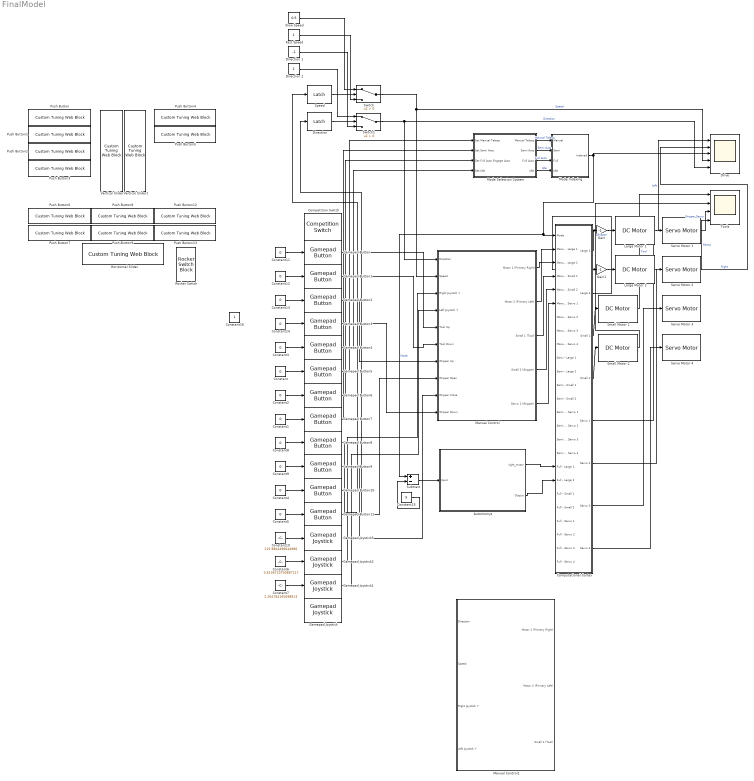
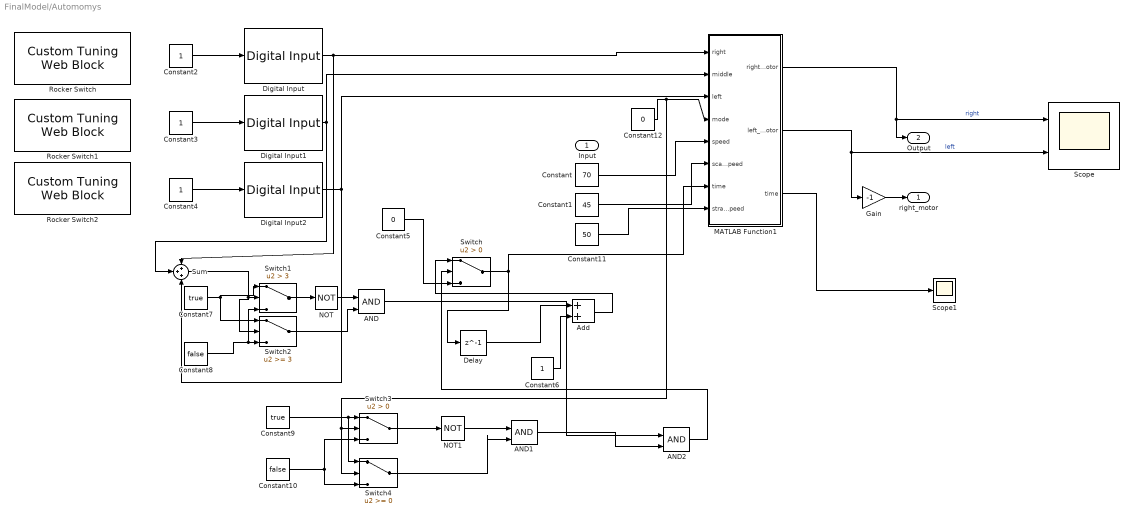
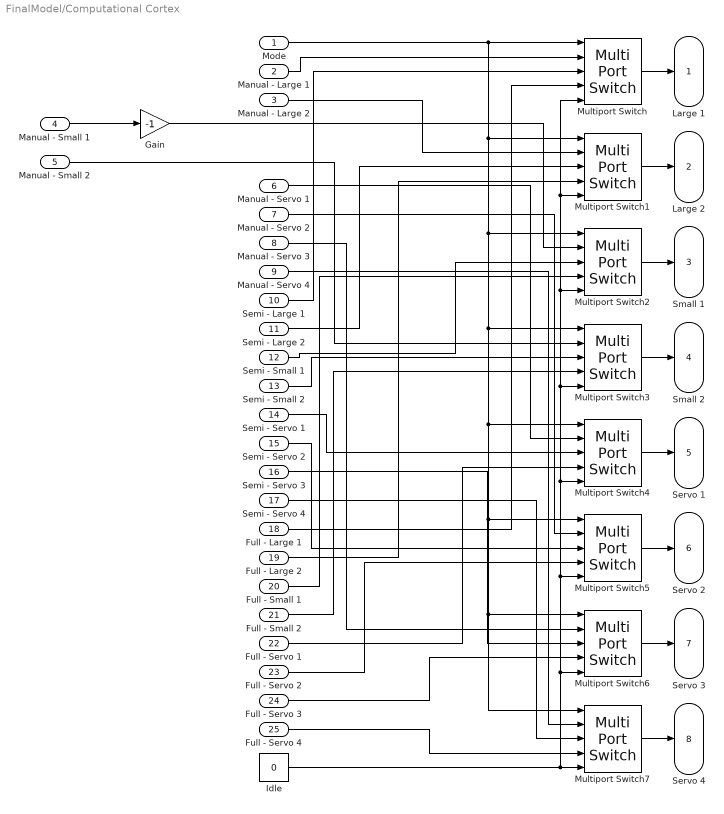
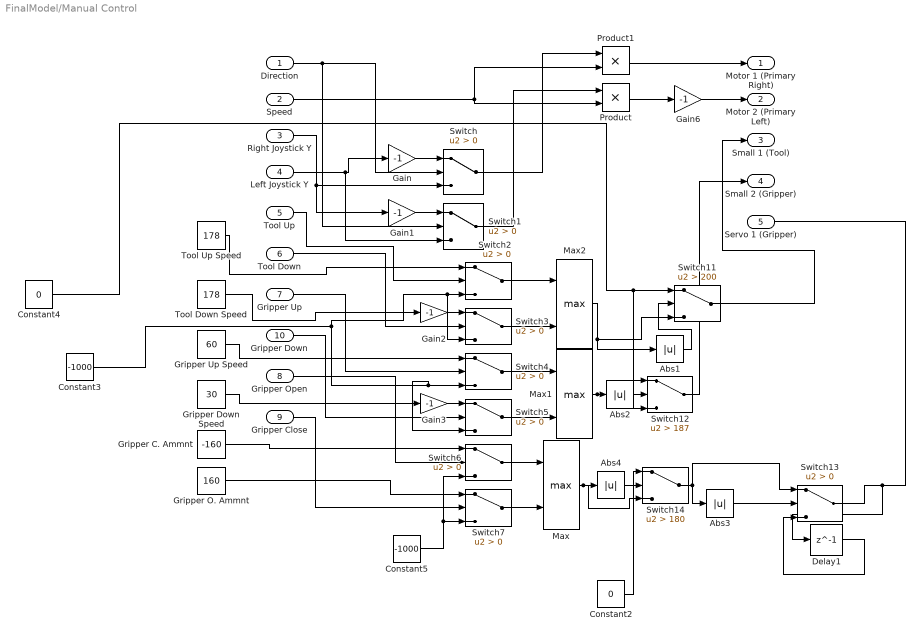
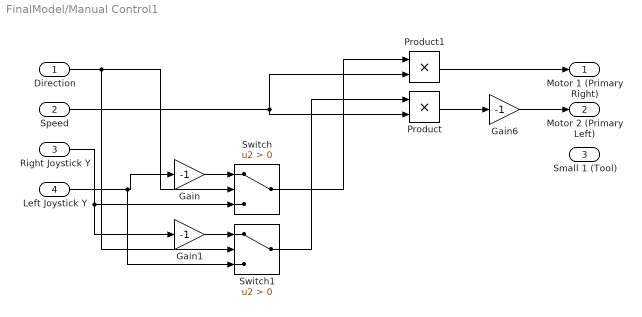
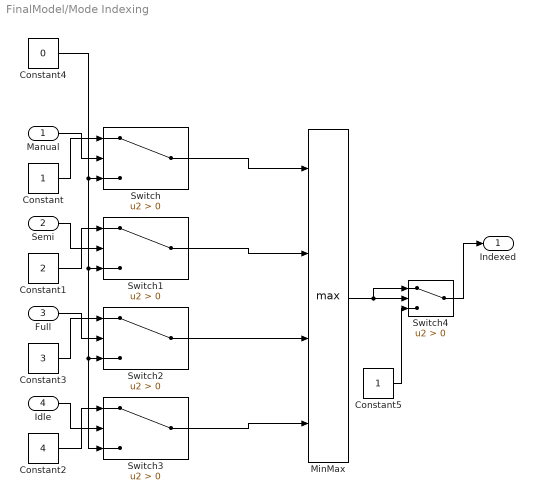
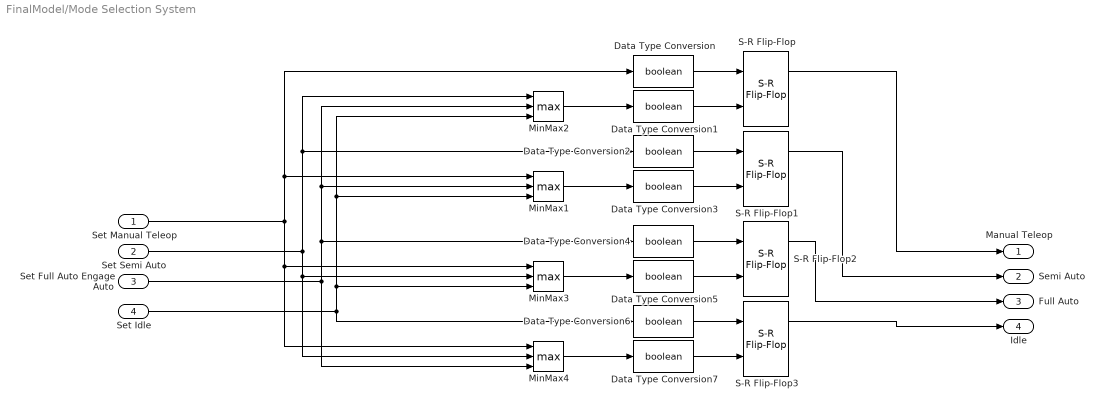
== matlab function FinalModel/Automomys/MATLAB Function1 ==
function [right_motor, left_motor, time]  = line_follow(right, middle, left, mode, speed, scanspeed, time, straightspeed)
right_motor = 0;
left_motor = 0;
if mode == 0
   if left == 1 && middle == 0 && right == 1
       %Straight
       right_motor = straightspeed;
       left_motor = straightspeed;
   elseif left == 1 && middle == 0 && right == 0
       %RightSlight
       right_motor = speed/2;
       left_motor = speed;
   elseif left == 1 && middle == 1 && right == 0
       %Right
       right_motor = -speed/2;
       left_motor = speed/2;
   elseif left == 0 && middle == 0 && right == 1
       %LeftSlight
       right_motor = speed;
       left_motor = speed/2;
   elseif left == 0 && middle == 1 && right == 1
       %Left
       right_motor = speed/2;
       left_motor = -speed/2;
   else     %scanning
       if time < 25 %change to time off
           %scan right
           right_motor = -scanspeed;
           left_motor = scanspeed;
       elseif time >= 25 && time < 75 %change to time off
           %scan left
           right_motor = scanspeed;
           left_motor = -scanspeed;
       elseif time >= 75 && time < 100  %change to time off
           right_motor = -scanspeed;
           left_motor = scanspeed;
       elseif time >= 100 && time < 105  %change to time off
           right_motor = 0;
           left_motor = 0;           
       else
           left_motor = -scanspeed;
           right_motor = -scanspeed;
       end
   end
end

/*
 * Sponsored License - for use in support of a program or activity
 * sponsored by MathWorks.  Not for government, commercial or other
 * non-sponsored organizational use.
 *
 * File: FinalModel.c
 *
 * Code generated for Simulink model 'FinalModel'.
 *
 * Model version                  : 1.65
 * Simulink Coder version         : 23.2 (R2023b) 01-Aug-2023
 * C/C++ source code generated on : Thu Dec 14 19:41:36 2023
 *
 * Target selection: ert.tlc
 * Embedded hardware selection: ARM Compatible->ARM Cortex
 * Code generation objectives: Unspecified
 * Validation result: Not run
 */

#include "FinalModel.h"
#include "rtwtypes.h"
#include "FinalModel_private.h"
#include "rt_nonfinite.h"
#include <math.h>

/* Named constants for Chart: '<S3>/Chart' */
#define FinalModel_IN_init             ((uint8_T)1U)
#define FinalModel_IN_wait             ((uint8_T)2U)

/* Block signals (default storage) */
B_FinalModel_T FinalModel_B;

/* Block states (default storage) */
DW_FinalModel_T FinalModel_DW;

/* Real-time model */
static RT_MODEL_FinalModel_T FinalModel_M_;
RT_MODEL_FinalModel_T *const FinalModel_M = &FinalModel_M_;
static void rate_scheduler(void);

/*
 *         This function updates active task flag for each subrate.
 *         The function is called at model base rate, hence the
 *         generated code self-manages all its subrates.
 */
static void rate_scheduler(void)
{
  /* Compute which subrates run during the next base time step.  Subrates
   * are an integer multiple of the base rate counter.  Therefore, the subtask
   * counter is reset when it reaches its limit (zero means run).
   */
  (FinalModel_M->Timing.TaskCounters.TID[1])++;
  if ((FinalModel_M->Timing.TaskCounters.TID[1]) > 9) {/* Sample time: [0.2s, 0.0s] */
    FinalModel_M->Timing.TaskCounters.TID[1] = 0;
  }
}

/*
 * System initialize for atomic system:
 *    '<S3>/Chart'
 *    '<S8>/Chart'
 */
void FinalModel_Chart_Init(real_T *rty_output)
{
  *rty_output = 0.0;
}

/*
 * Output and update for atomic system:
 *    '<S3>/Chart'
 *    '<S8>/Chart'
 */
void FinalModel_Chart(real_T rtu_trigger, real_T *rty_output,
                      DW_Chart_FinalModel_T *localDW, P_Chart_FinalModel_T
                      *localP)
{
  /* Chart: '<S3>/Chart' */
  if (localDW->is_active_c7_vexcommonlib == 0U) {
    localDW->is_active_c7_vexcommonlib = 1U;
    *rty_output = localP->Chart_output0;
    localDW->is_c7_vexcommonlib = FinalModel_IN_init;
  } else if (localDW->is_c7_vexcommonlib == FinalModel_IN_init) {
    if (rtu_trigger != 0.0) {
      *rty_output = !(*rty_output != 0.0);
      localDW->is_c7_vexcommonlib = FinalModel_IN_wait;
    }

    /* case IN_wait: */
  } else if (rtu_trigger == 0.0) {
    localDW->is_c7_vexcommonlib = FinalModel_IN_init;
  }

  /* End of Chart: '<S3>/Chart' */
}

real_T rt_roundd_snf(real_T u)
{
  real_T y;
  if (fabs(u) < 4.503599627370496E+15) {
    if (u >= 0.5) {
      y = floor(u + 0.5);
    } else if (u > -0.5) {
      y = u * 0.0;
    } else {
      y = ceil(u - 0.5);
    }
  } else {
    y = u;
  }

  return y;
}

/* Model step function */
void FinalModel_step(void)
{
  real_T rtb_Direction;
  real_T rtb_MultiportSwitch6;
  real_T rtb_Sum;
  real_T rtb_Switch3;
  real_T rtb_left_motor;
  real_T y;
  int32_T tmp;
  uint8_T b_varargout_1;
  uint8_T b_varargout_2;
  boolean_T tmp_0;
  boolean_T tmp_1;
  boolean_T tmp_2;
  boolean_T tmp_3;

  /* MATLABSystem: '<Root>/Gamepad Button5' */
  FinalModel_B.MinMax = joystickGetDigital(1, 7, 4);

  /* MATLABSystem: '<Root>/Gamepad Button7' */
  rtb_MultiportSwitch6 = joystickGetDigital(1, 7, 8);

  /* MATLABSystem: '<Root>/Gamepad Button6' */
  rtb_Switch3 = joystickGetDigital(1, 7, 2);

  /* MATLABSystem: '<Root>/Gamepad Button4' */
  rtb_Direction = joystickGetDigital(1, 7, 1);

  /* MinMax: '<S7>/MinMax2' incorporates:
   *  MATLABSystem: '<Root>/Gamepad Button4'
   *  MATLABSystem: '<Root>/Gamepad Button6'
   *  MATLABSystem: '<Root>/Gamepad Button7'
   *  MinMax: '<S7>/MinMax1'
   *  MinMax: '<S7>/MinMax3'
   *  MinMax: '<S7>/MinMax4'
   */
  tmp_1 = rtIsNaN(rtb_Switch3);
  if ((rtb_MultiportSwitch6 >= rtb_Switch3) || tmp_1) {
    y = rtb_MultiportSwitch6;
  } else {
    y = rtb_Switch3;
  }

  tmp_3 = !rtIsNaN(rtb_Direction);
  if ((!(y >= rtb_Direction)) && tmp_3) {
    y = rtb_Direction;
  }

  /* Switch: '<S6>/Switch' incorporates:
   *  CombinatorialLogic: '<S11>/Logic'
   *  DataTypeConversion: '<S7>/Data Type Conversion'
   *  DataTypeConversion: '<S7>/Data Type Conversion1'
   *  MATLABSystem: '<Root>/Gamepad Button5'
   *  Memory: '<S11>/Memory'
   *  MinMax: '<S7>/MinMax2'
   */
  FinalModel_DW.Memory_PreviousInput = FinalModel_P.Logic_table[((((uint32_T)
    (FinalModel_B.MinMax != 0.0) << 1) + (uint32_T)(y != 0.0)) << 1) +
    FinalModel_DW.Memory_PreviousInput];

  /* MinMax: '<S7>/MinMax1' incorporates:
   *  MATLABSystem: '<Root>/Gamepad Button4'
   *  MATLABSystem: '<Root>/Gamepad Button5'
   *  MATLABSystem: '<Root>/Gamepad Button6'
   */
  if ((FinalModel_B.MinMax >= rtb_Switch3) || tmp_1) {
    y = FinalModel_B.MinMax;
  } else {
    y = rtb_Switch3;
  }

  if ((!(y >= rtb_Direction)) && tmp_3) {
    y = rtb_Direction;
  }

  /* Switch: '<S6>/Switch1' incorporates:
   *  CombinatorialLogic: '<S12>/Logic'
   *  DataTypeConversion: '<S7>/Data Type Conversion2'
   *  DataTypeConversion: '<S7>/Data Type Conversion3'
   *  MATLABSystem: '<Root>/Gamepad Button7'
   *  Memory: '<S12>/Memory'
   *  MinMax: '<S7>/MinMax1'
   */
  FinalModel_DW.Memory_PreviousInput_a = FinalModel_P.Logic_table_a[((((uint32_T)
    (rtb_MultiportSwitch6 != 0.0) << 1) + (uint32_T)(y != 0.0)) << 1) +
    FinalModel_DW.Memory_PreviousInput_a];

  /* MinMax: '<S7>/MinMax3' incorporates:
   *  MATLABSystem: '<Root>/Gamepad Button4'
   *  MATLABSystem: '<Root>/Gamepad Button5'
   *  MATLABSystem: '<Root>/Gamepad Button7'
   *  MinMax: '<S7>/MinMax4'
   */
  tmp_2 = ((FinalModel_B.MinMax >= rtb_MultiportSwitch6) || rtIsNaN
           (rtb_MultiportSwitch6));
  if (tmp_2) {
    y = FinalModel_B.MinMax;
  } else {
    y = rtb_MultiportSwitch6;
  }

  if ((!(y >= rtb_Direction)) && tmp_3) {
    y = rtb_Direction;
  }

  /* Switch: '<S6>/Switch2' incorporates:
   *  CombinatorialLogic: '<S13>/Logic'
   *  DataTypeConversion: '<S7>/Data Type Conversion4'
   *  DataTypeConversion: '<S7>/Data Type Conversion5'
   *  MATLABSystem: '<Root>/Gamepad Button6'
   *  Memory: '<S13>/Memory'
   *  MinMax: '<S7>/MinMax3'
   */
  FinalModel_DW.Memory_PreviousInput_i = FinalModel_P.Logic_table_b[((((uint32_T)
    (rtb_Switch3 != 0.0) << 1) + (uint32_T)(y != 0.0)) << 1) +
    FinalModel_DW.Memory_PreviousInput_i];

  /* MinMax: '<S7>/MinMax4' incorporates:
   *  MATLABSystem: '<Root>/Gamepad Button5'
   *  MATLABSystem: '<Root>/Gamepad Button6'
   */
  if (tmp_2) {
    rtb_MultiportSwitch6 = FinalModel_B.MinMax;
  }

  if ((rtb_MultiportSwitch6 >= rtb_Switch3) || tmp_1) {
    rtb_Switch3 = rtb_MultiportSwitch6;
  }

  /* Switch: '<S6>/Switch3' incorporates:
   *  CombinatorialLogic: '<S14>/Logic'
   *  DataTypeConversion: '<S7>/Data Type Conversion6'
   *  DataTypeConversion: '<S7>/Data Type Conversion7'
   *  MATLABSystem: '<Root>/Gamepad Button4'
   *  Memory: '<S14>/Memory'
   *  MinMax: '<S7>/MinMax4'
   */
  FinalModel_DW.Memory_PreviousInput_n = FinalModel_P.Logic_table_j[((((uint32_T)
    (rtb_Direction != 0.0) << 1) + (uint32_T)(rtb_Switch3 != 0.0)) << 1) +
    FinalModel_DW.Memory_PreviousInput_n];

  /* Switch: '<S6>/Switch' incorporates:
   *  Constant: '<S6>/Constant'
   *  Constant: '<S6>/Constant4'
   */
  if (FinalModel_DW.Memory_PreviousInput) {
    rtb_MultiportSwitch6 = FinalModel_P.Constant_Value;
  } else {
    rtb_MultiportSwitch6 = FinalModel_P.Constant4_Value;
  }

  /* Switch: '<S6>/Switch1' incorporates:
   *  Constant: '<S6>/Constant1'
   *  Constant: '<S6>/Constant4'
   */
  if (FinalModel_DW.Memory_PreviousInput_a) {
    rtb_Switch3 = FinalModel_P.Constant1_Value;
  } else {
    rtb_Switch3 = FinalModel_P.Constant4_Value;
  }

  /* Switch: '<S6>/Switch2' incorporates:
   *  Constant: '<S6>/Constant3'
   *  Constant: '<S6>/Constant4'
   */
  if (FinalModel_DW.Memory_PreviousInput_i) {
    rtb_Direction = FinalModel_P.Constant3_Value;
  } else {
    rtb_Direction = FinalModel_P.Constant4_Value;
  }

  /* Switch: '<S6>/Switch3' incorporates:
   *  Constant: '<S6>/Constant2'
   *  Constant: '<S6>/Constant4'
   */
  if (FinalModel_DW.Memory_PreviousInput_n) {
    FinalModel_B.MinMax = FinalModel_P.Constant2_Value_e;
  } else {
    FinalModel_B.MinMax = FinalModel_P.Constant4_Value;
  }

  /* MinMax: '<S6>/MinMax' incorporates:
   *  Switch: '<S6>/Switch'
   *  Switch: '<S6>/Switch1'
   *  Switch: '<S6>/Switch2'
   *  Switch: '<S6>/Switch3'
   */
  if ((rtb_MultiportSwitch6 >= rtb_Switch3) || rtIsNaN(rtb_Switch3)) {
    rtb_Switch3 = rtb_MultiportSwitch6;
  }

  if ((rtb_Switch3 >= rtb_Direction) || rtIsNaN(rtb_Direction)) {
    rtb_Direction = rtb_Switch3;
  }

  if ((rtb_Direction >= FinalModel_B.MinMax) || rtIsNaN(FinalModel_B.MinMax)) {
    FinalModel_B.MinMax = rtb_Direction;
  }

  /* End of MinMax: '<S6>/MinMax' */

  /* Switch: '<S6>/Switch4' incorporates:
   *  Constant: '<S6>/Constant5'
   */
  if (!(FinalModel_B.MinMax > FinalModel_P.Switch4_Threshold_j)) {
    FinalModel_B.MinMax = FinalModel_P.Constant5_Value_n;
  }

  /* End of Switch: '<S6>/Switch4' */

  /* MultiPortSwitch: '<S2>/Multiport Switch6' incorporates:
   *  Constant: '<S2>/Idle'
   */
  switch ((int32_T)FinalModel_B.MinMax) {
   case 1:
    rtb_MultiportSwitch6 = 0.0;
    break;

   case 2:
    rtb_MultiportSwitch6 = 0.0;
    break;

   case 3:
    rtb_MultiportSwitch6 = 0.0;
    break;

   default:
    rtb_MultiportSwitch6 = FinalModel_P.Idle_Value;
    break;
  }

  /* End of MultiPortSwitch: '<S2>/Multiport Switch6' */

  /* MATLABSystem: '<Root>/Servo Motor 3' */
  if (rtb_MultiportSwitch6 > 127.0) {
    rtb_MultiportSwitch6 = 127.0;
  } else if (rtb_MultiportSwitch6 < -128.0) {
    rtb_MultiportSwitch6 = -128.0;
  }

  FinalModel_B.MultiportSwitch = rt_roundd_snf(rtb_MultiportSwitch6);
  if (FinalModel_B.MultiportSwitch < 2.147483648E+9) {
    tmp = (int32_T)FinalModel_B.MultiportSwitch;
  } else {
    tmp = MAX_int32_T;
  }

  motorSet(8, tmp);

  /* End of MATLABSystem: '<Root>/Servo Motor 3' */

  /* MultiPortSwitch: '<S2>/Multiport Switch7' incorporates:
   *  Constant: '<S2>/Idle'
   */
  switch ((int32_T)FinalModel_B.MinMax) {
   case 1:
    rtb_MultiportSwitch6 = 0.0;
    break;

   case 2:
    rtb_MultiportSwitch6 = 0.0;
    break;

   case 3:
    rtb_MultiportSwitch6 = 0.0;
    break;

   default:
    rtb_MultiportSwitch6 = FinalModel_P.Idle_Value;
    break;
  }

  /* End of MultiPortSwitch: '<S2>/Multiport Switch7' */

  /* MATLABSystem: '<Root>/Servo Motor 4' */
  if (rtb_MultiportSwitch6 > 127.0) {
    rtb_MultiportSwitch6 = 127.0;
  } else if (rtb_MultiportSwitch6 < -128.0) {
    rtb_MultiportSwitch6 = -128.0;
  }

  FinalModel_B.MultiportSwitch = rt_roundd_snf(rtb_MultiportSwitch6);
  if (FinalModel_B.MultiportSwitch < 2.147483648E+9) {
    tmp = (int32_T)FinalModel_B.MultiportSwitch;
  } else {
    tmp = MAX_int32_T;
  }

  motorSet(9, tmp);

  /* End of MATLABSystem: '<Root>/Servo Motor 4' */

  /* MATLABSystem: '<Root>/Gamepad Button' */
  rtb_MultiportSwitch6 = joystickGetDigital(1, 5, 4);

  /* MATLABSystem: '<Root>/Gamepad Button1' */
  rtb_Switch3 = joystickGetDigital(1, 5, 1);

  /* MultiPortSwitch: '<S2>/Multiport Switch2' incorporates:
   *  Constant: '<S2>/Idle'
   *  Gain: '<S2>/Gain'
   *  Switch: '<S4>/Switch11'
   */
  switch ((int32_T)FinalModel_B.MinMax) {
   case 1:
    /* Switch: '<S4>/Switch3' incorporates:
     *  Constant: '<S4>/Constant3'
     *  Constant: '<S4>/Tool Down Speed'
     *  Gain: '<S4>/Gain2'
     *  MATLABSystem: '<Root>/Gamepad Button1'
     */
    if (rtb_Switch3 > FinalModel_P.Switch3_Threshold) {
      rtb_Switch3 = FinalModel_P.Gain2_Gain * FinalModel_P.ToolDownSpeed_Value;
    } else {
      rtb_Switch3 = FinalModel_P.Constant3_Value_b;
    }

    /* End of Switch: '<S4>/Switch3' */

    /* Switch: '<S4>/Switch2' incorporates:
     *  Constant: '<S4>/Constant3'
     *  Constant: '<S4>/Tool Up Speed'
     *  MATLABSystem: '<Root>/Gamepad Button'
     */
    if (rtb_MultiportSwitch6 > FinalModel_P.Switch2_Threshold) {
      rtb_MultiportSwitch6 = FinalModel_P.ToolUpSpeed_Value;
    } else {
      rtb_MultiportSwitch6 = FinalModel_P.Constant3_Value_b;
    }

    /* MinMax: '<S4>/Max2' incorporates:
     *  Switch: '<S4>/Switch2'
     */
    if ((rtb_MultiportSwitch6 >= rtb_Switch3) || rtIsNaN(rtb_Switch3)) {
      rtb_Switch3 = rtb_MultiportSwitch6;
    }

    /* End of MinMax: '<S4>/Max2' */

    /* Switch: '<S4>/Switch11' incorporates:
     *  Abs: '<S4>/Abs1'
     *  Constant: '<S4>/Constant4'
     */
    if (fabs(rtb_Switch3) > FinalModel_P.Switch11_Threshold) {
      rtb_Switch3 = FinalModel_P.Constant4_Value_i;
    }

    rtb_MultiportSwitch6 = FinalModel_P.Gain_Gain_a * rtb_Switch3;
    break;

   case 2:
    rtb_MultiportSwitch6 = 0.0;
    break;

   case 3:
    rtb_MultiportSwitch6 = 0.0;
    break;

   default:
    rtb_MultiportSwitch6 = FinalModel_P.Idle_Value;
    break;
  }

  /* End of MultiPortSwitch: '<S2>/Multiport Switch2' */

  /* MATLABSystem: '<Root>/Small Motor 1' */
  if (FinalModel_DW.obj_h.scaleFactor != FinalModel_P.SmallMotor1_scaleFactor) {
    if (FinalModel_DW.obj_h.isInitialized == 1) {
      FinalModel_DW.obj_h.TunablePropsChanged = true;
    }

    FinalModel_DW.obj_h.scaleFactor = FinalModel_P.SmallMotor1_scaleFactor;
  }

  if (FinalModel_DW.obj_h.TunablePropsChanged) {
    FinalModel_DW.obj_h.TunablePropsChanged = false;
  }

  if (rtb_MultiportSwitch6 > 127.0) {
    rtb_MultiportSwitch6 = 127.0;
  } else if (rtb_MultiportSwitch6 < -128.0) {
    rtb_MultiportSwitch6 = -128.0;
  }

  FinalModel_B.MultiportSwitch = rt_roundd_snf(rtb_MultiportSwitch6);
  if (FinalModel_B.MultiportSwitch < 2.147483648E+9) {
    tmp = (int32_T)FinalModel_B.MultiportSwitch;
  } else {
    tmp = MAX_int32_T;
  }

  motorSet(4, tmp);

  /* End of MATLABSystem: '<Root>/Small Motor 1' */

  /* MATLABSystem: '<Root>/Gamepad Button2' */
  rtb_MultiportSwitch6 = joystickGetDigital(1, 6, 4);

  /* MATLABSystem: '<Root>/Gamepad Button3' */
  rtb_Switch3 = joystickGetDigital(1, 6, 1);

  /* MultiPortSwitch: '<S2>/Multiport Switch3' incorporates:
   *  Constant: '<S2>/Idle'
   */
  switch ((int32_T)FinalModel_B.MinMax) {
   case 1:
    /* Switch: '<S4>/Switch5' incorporates:
     *  Constant: '<S4>/Constant3'
     *  Constant: '<S4>/Gripper Down Speed'
     *  Gain: '<S4>/Gain3'
     *  MATLABSystem: '<Root>/Gamepad Button3'
     */
    if (rtb_Switch3 > FinalModel_P.Switch5_Threshold) {
      rtb_Switch3 = FinalModel_P.Gain3_Gain *
        FinalModel_P.GripperDownSpeed_Value;
    } else {
      rtb_Switch3 = FinalModel_P.Constant3_Value_b;
    }

    /* End of Switch: '<S4>/Switch5' */

    /* Switch: '<S4>/Switch4' incorporates:
     *  Constant: '<S4>/Constant3'
     *  Constant: '<S4>/Gripper Up Speed'
     *  MATLABSystem: '<Root>/Gamepad Button2'
     */
    if (rtb_MultiportSwitch6 > FinalModel_P.Switch4_Threshold) {
      rtb_MultiportSwitch6 = FinalModel_P.GripperUpSpeed_Value;
    } else {
      rtb_MultiportSwitch6 = FinalModel_P.Constant3_Value_b;
    }

    /* MinMax: '<S4>/Max1' incorporates:
     *  Switch: '<S4>/Switch4'
     */
    if ((rtb_MultiportSwitch6 >= rtb_Switch3) || rtIsNaN(rtb_Switch3)) {
      rtb_Switch3 = rtb_MultiportSwitch6;
    }

    /* End of MinMax: '<S4>/Max1' */

    /* Switch: '<S4>/Switch12' incorporates:
     *  Abs: '<S4>/Abs2'
     *  Constant: '<S4>/Constant4'
     */
    if (fabs(rtb_Switch3) > FinalModel_P.Switch12_Threshold) {
      rtb_Switch3 = FinalModel_P.Constant4_Value_i;
    }

    /* End of Switch: '<S4>/Switch12' */
    break;

   case 2:
    rtb_Switch3 = 0.0;
    break;

   case 3:
    rtb_Switch3 = 0.0;
    break;

   default:
    rtb_Switch3 = FinalModel_P.Idle_Value;
    break;
  }

  /* End of MultiPortSwitch: '<S2>/Multiport Switch3' */

  /* MATLABSystem: '<Root>/Small Motor 2' */
  if (FinalModel_DW.obj.scaleFactor != FinalModel_P.SmallMotor2_scaleFactor) {
    if (FinalModel_DW.obj.isInitialized == 1) {
      FinalModel_DW.obj.TunablePropsChanged = true;
    }

    FinalModel_DW.obj.scaleFactor = FinalModel_P.SmallMotor2_scaleFactor;
  }

  if (FinalModel_DW.obj.TunablePropsChanged) {
    FinalModel_DW.obj.TunablePropsChanged = false;
  }

  if (rtb_Switch3 > 127.0) {
    rtb_Switch3 = 127.0;
  } else if (rtb_Switch3 < -128.0) {
    rtb_Switch3 = -128.0;
  }

  FinalModel_B.MultiportSwitch = rt_roundd_snf(rtb_Switch3);
  if (FinalModel_B.MultiportSwitch < 2.147483648E+9) {
    tmp = (int32_T)FinalModel_B.MultiportSwitch;
  } else {
    tmp = MAX_int32_T;
  }

  motorSet(5, tmp);

  /* End of MATLABSystem: '<Root>/Small Motor 2' */

  /* MATLABSystem: '<Root>/Gamepad Button8' */
  rtb_MultiportSwitch6 = joystickGetDigital(1, 8, 1);

  /* MATLABSystem: '<Root>/Gamepad Button9' */
  rtb_Switch3 = joystickGetDigital(1, 8, 4);

  /* Switch: '<S4>/Switch6' incorporates:
   *  Constant: '<S4>/Constant5'
   *  Constant: '<S4>/Gripper C. Ammnt'
   *  MATLABSystem: '<Root>/Gamepad Button8'
   */
  if (rtb_MultiportSwitch6 > FinalModel_P.Switch6_Threshold) {
    rtb_MultiportSwitch6 = FinalModel_P.GripperCAmmnt_Value;
  } else {
    rtb_MultiportSwitch6 = FinalModel_P.Constant5_Value_p;
  }

  /* Switch: '<S4>/Switch7' incorporates:
   *  Constant: '<S4>/Constant5'
   *  Constant: '<S4>/Gripper O. Ammnt'
   *  MATLABSystem: '<Root>/Gamepad Button9'
   */
  if (rtb_Switch3 > FinalModel_P.Switch7_Threshold) {
    FinalModel_B.MultiportSwitch = FinalModel_P.GripperOAmmnt_Value;
  } else {
    FinalModel_B.MultiportSwitch = FinalModel_P.Constant5_Value_p;
  }

  /* MinMax: '<S4>/Max' incorporates:
   *  Switch: '<S4>/Switch6'
   *  Switch: '<S4>/Switch7'
   */
  if ((rtb_MultiportSwitch6 >= FinalModel_B.MultiportSwitch) || rtIsNaN
      (FinalModel_B.MultiportSwitch)) {
    FinalModel_B.MultiportSwitch = rtb_MultiportSwitch6;
  }

  /* End of MinMax: '<S4>/Max' */

  /* Switch: '<S4>/Switch14' incorporates:
   *  Abs: '<S4>/Abs4'
   *  Constant: '<S4>/Constant2'
   */
  if (fabs(FinalModel_B.MultiportSwitch) > FinalModel_P.Switch14_Threshold) {
    FinalModel_B.MultiportSwitch = FinalModel_P.Constant2_Value;
  }

  /* End of Switch: '<S4>/Switch14' */

  /* Switch: '<S4>/Switch13' incorporates:
   *  Abs: '<S4>/Abs3'
   *  Delay: '<S4>/Delay1'
   */
  if (fabs(FinalModel_B.MultiportSwitch) > FinalModel_P.Switch13_Threshold) {
    FinalModel_DW.Delay1_DSTATE = FinalModel_B.MultiportSwitch;
  }

  /* End of Switch: '<S4>/Switch13' */

  /* MultiPortSwitch: '<S2>/Multiport Switch4' incorporates:
   *  Constant: '<S2>/Idle'
   *  Delay: '<S4>/Delay1'
   */
  switch ((int32_T)FinalModel_B.MinMax) {
   case 1:
    rtb_MultiportSwitch6 = FinalModel_DW.Delay1_DSTATE;
    break;

   case 2:
    rtb_MultiportSwitch6 = 0.0;
    break;

   case 3:
    rtb_MultiportSwitch6 = 0.0;
    break;

   default:
    rtb_MultiportSwitch6 = FinalModel_P.Idle_Value;
    break;
  }

  /* End of MultiPortSwitch: '<S2>/Multiport Switch4' */

  /* MATLABSystem: '<Root>/Servo Motor 1' */
  if (rtb_MultiportSwitch6 > 127.0) {
    rtb_MultiportSwitch6 = 127.0;
  } else if (rtb_MultiportSwitch6 < -128.0) {
    rtb_MultiportSwitch6 = -128.0;
  }

  FinalModel_B.MultiportSwitch = rt_roundd_snf(rtb_MultiportSwitch6);
  if (FinalModel_B.MultiportSwitch < 2.147483648E+9) {
    tmp = (int32_T)FinalModel_B.MultiportSwitch;
  } else {
    tmp = MAX_int32_T;
  }

  motorSet(6, tmp);

  /* End of MATLABSystem: '<Root>/Servo Motor 1' */

  /* MultiPortSwitch: '<S2>/Multiport Switch5' incorporates:
   *  Constant: '<S2>/Idle'
   */
  switch ((int32_T)FinalModel_B.MinMax) {
   case 1:
    rtb_MultiportSwitch6 = 0.0;
    break;

   case 2:
    rtb_MultiportSwitch6 = 0.0;
    break;

   case 3:
    rtb_MultiportSwitch6 = 0.0;
    break;

   default:
    rtb_MultiportSwitch6 = FinalModel_P.Idle_Value;
    break;
  }

  /* End of MultiPortSwitch: '<S2>/Multiport Switch5' */

  /* MATLABSystem: '<Root>/Servo Motor 2' */
  if (rtb_MultiportSwitch6 > 127.0) {
    rtb_MultiportSwitch6 = 127.0;
  } else if (rtb_MultiportSwitch6 < -128.0) {
    rtb_MultiportSwitch6 = -128.0;
  }

  FinalModel_B.MultiportSwitch = rt_roundd_snf(rtb_MultiportSwitch6);
  if (FinalModel_B.MultiportSwitch < 2.147483648E+9) {
    tmp = (int32_T)FinalModel_B.MultiportSwitch;
  } else {
    tmp = MAX_int32_T;
  }

  motorSet(7, tmp);

  /* End of MATLABSystem: '<Root>/Servo Motor 2' */
  if (FinalModel_M->Timing.TaskCounters.TID[1] == 0) {
    /* MATLABSystem: '<S1>/Digital Input' */
    rtb_MultiportSwitch6 = digitalRead(1);

    /* MATLABSystem: '<S1>/Digital Input1' */
    rtb_Switch3 = digitalRead(2);

    /* MATLABSystem: '<S1>/Digital Input2' */
    rtb_Direction = digitalRead(3);

    /* Sum: '<S1>/Sum' incorporates:
     *  MATLABSystem: '<S1>/Digital Input'
     *  MATLABSystem: '<S1>/Digital Input1'
     *  MATLABSystem: '<S1>/Digital Input2'
     */
    rtb_Sum = (rtb_MultiportSwitch6 + rtb_Switch3) + rtb_Direction;

    /* Switch: '<S1>/Switch1' incorporates:
     *  Constant: '<S1>/Constant7'
     *  Constant: '<S1>/Constant8'
     */
    if (rtb_Sum > FinalModel_P.Switch1_Threshold_n) {
      tmp_1 = FinalModel_P.Constant7_Value_j;
    } else {
      tmp_1 = FinalModel_P.Constant8_Value_l;
    }

    /* Switch: '<S1>/Switch2' incorporates:
     *  Constant: '<S1>/Constant7'
     *  Constant: '<S1>/Constant8'
     */
    if (rtb_Sum >= FinalModel_P.Switch2_Threshold_k) {
      tmp_3 = FinalModel_P.Constant7_Value_j;
    } else {
      tmp_3 = FinalModel_P.Constant8_Value_l;
    }

    /* Switch: '<S1>/Switch3' incorporates:
     *  Constant: '<S1>/Constant10'
     *  Constant: '<S1>/Constant12'
     *  Constant: '<S1>/Constant9'
     */
    if (FinalModel_P.Constant12_Value_g > FinalModel_P.Switch3_Threshold_o) {
      tmp_2 = FinalModel_P.Constant9_Value_p;
    } else {
      tmp_2 = FinalModel_P.Constant10_Value_c;
    }

    /* Switch: '<S1>/Switch4' incorporates:
     *  Constant: '<S1>/Constant10'
     *  Constant: '<S1>/Constant12'
     *  Constant: '<S1>/Constant9'
     */
    if (FinalModel_P.Constant12_Value_g >= FinalModel_P.Switch4_Threshold_l) {
      tmp_0 = FinalModel_P.Constant9_Value_p;
    } else {
      tmp_0 = FinalModel_P.Constant10_Value_c;
    }

    /* Switch: '<S1>/Switch' incorporates:
     *  Constant: '<S1>/Constant5'
     *  Constant: '<S1>/Constant6'
     *  Delay: '<S1>/Delay'
     *  Logic: '<S1>/AND'
     *  Logic: '<S1>/AND1'
     *  Logic: '<S1>/AND2'
     *  Logic: '<S1>/NOT'
     *  Logic: '<S1>/NOT1'
     *  Sum: '<S1>/Add'
     *  Switch: '<S1>/Switch1'
     *  Switch: '<S1>/Switch2'
     *  Switch: '<S1>/Switch3'
     *  Switch: '<S1>/Switch4'
     */
    if ((!tmp_1) && tmp_3 && ((!tmp_2) && tmp_0)) {
      rtb_Sum = FinalModel_DW.Delay_DSTATE + FinalModel_P.Constant6_Value;
    } else {
      rtb_Sum = FinalModel_P.Constant5_Value;
    }

    /* End of Switch: '<S1>/Switch' */

    /* MATLAB Function: '<S1>/MATLAB Function1' incorporates:
     *  Constant: '<S1>/Constant'
     *  Constant: '<S1>/Constant1'
     *  Constant: '<S1>/Constant11'
     *  Constant: '<S1>/Constant12'
     *  MATLABSystem: '<S1>/Digital Input'
     *  MATLABSystem: '<S1>/Digital Input1'
     *  MATLABSystem: '<S1>/Digital Input2'
     */
    FinalModel_B.right_motor = 0.0;
    rtb_left_motor = 0.0;
    if (FinalModel_P.Constant12_Value_g == 0.0) {
      tmp_1 = ((rtb_Direction == 1.0) && (rtb_Switch3 == 0.0));
      if (tmp_1 && (rtb_MultiportSwitch6 == 1.0)) {
        FinalModel_B.right_motor = FinalModel_P.Constant11_Value_k;
        rtb_left_motor = FinalModel_P.Constant11_Value_k;
      } else if (tmp_1 && (rtb_MultiportSwitch6 == 0.0)) {
        FinalModel_B.right_motor = FinalModel_P.Constant_Value_f / 2.0;
        rtb_left_motor = FinalModel_P.Constant_Value_f;
      } else if ((rtb_Direction == 1.0) && (rtb_Switch3 == 1.0) &&
                 (rtb_MultiportSwitch6 == 0.0)) {
        FinalModel_B.right_motor = -FinalModel_P.Constant_Value_f / 2.0;
        rtb_left_motor = FinalModel_P.Constant_Value_f / 2.0;
      } else if ((rtb_Direction == 0.0) && (rtb_Switch3 == 0.0) &&
                 (rtb_MultiportSwitch6 == 1.0)) {
        FinalModel_B.right_motor = FinalModel_P.Constant_Value_f;
        rtb_left_motor = FinalModel_P.Constant_Value_f / 2.0;
      } else if ((rtb_Direction == 0.0) && (rtb_Switch3 == 1.0) &&
                 (rtb_MultiportSwitch6 == 1.0)) {
        FinalModel_B.right_motor = FinalModel_P.Constant_Value_f / 2.0;
        rtb_left_motor = -FinalModel_P.Constant_Value_f / 2.0;
      } else if (rtb_Sum < 25.0) {
        FinalModel_B.right_motor = -FinalModel_P.Constant1_Value_j;
        rtb_left_motor = FinalModel_P.Constant1_Value_j;
      } else if ((rtb_Sum >= 25.0) && (rtb_Sum < 75.0)) {
        FinalModel_B.right_motor = FinalModel_P.Constant1_Value_j;
        rtb_left_motor = -FinalModel_P.Constant1_Value_j;
      } else if ((rtb_Sum >= 75.0) && (rtb_Sum < 100.0)) {
        FinalModel_B.right_motor = -FinalModel_P.Constant1_Value_j;
        rtb_left_motor = FinalModel_P.Constant1_Value_j;
      } else if ((!(rtb_Sum >= 100.0)) || (!(rtb_Sum < 105.0))) {
        rtb_left_motor = -FinalModel_P.Constant1_Value_j;
        FinalModel_B.right_motor = -FinalModel_P.Constant1_Value_j;
      }
    }

    /* End of MATLAB Function: '<S1>/MATLAB Function1' */
  }

  /* MATLABSystem: '<Root>/Gamepad Button10' */
  FinalModel_B.MultiportSwitch = joystickGetDigital(1, 8, 2);

  /* Chart: '<S8>/Chart' incorporates:
   *  MATLABSystem: '<Root>/Gamepad Button10'
   */
  FinalModel_Chart(FinalModel_B.MultiportSwitch, &FinalModel_B.output,
                   &FinalModel_DW.sf_Chart_j, &FinalModel_P.sf_Chart_j);

  /* Switch: '<Root>/Switch' incorporates:
   *  Constant: '<Root>/Fast Speed'
   *  Constant: '<Root>/Slow Speed'
   */
  if (FinalModel_B.output > FinalModel_P.Switch_Threshold_l) {
    rtb_MultiportSwitch6 = FinalModel_P.SlowSpeed_Value;
  } else {
    rtb_MultiportSwitch6 = FinalModel_P.FastSpeed_Value;
  }

  /* End of Switch: '<Root>/Switch' */

  /* MATLABSystem: '<Root>/Gamepad Joystick2' */
  rtb_Switch3 = joystickGetAnalog(1, 2);

  /* MATLABSystem: '<Root>/Gamepad Button11' */
  FinalModel_B.MultiportSwitch = joystickGetDigital(1, 8, 8);

  /* Chart: '<S3>/Chart' incorporates:
   *  MATLABSystem: '<Root>/Gamepad Button11'
   */
  FinalModel_Chart(FinalModel_B.MultiportSwitch, &FinalModel_B.output_e,
                   &FinalModel_DW.sf_Chart, &FinalModel_P.sf_Chart);

  /* Switch: '<Root>/Switch1' incorporates:
   *  Constant: '<Root>/Direction 1'
   *  Constant: '<Root>/Direction 2'
   */
  if (FinalModel_B.output_e > FinalModel_P.Switch1_Threshold_d) {
    rtb_Direction = FinalModel_P.Direction2_Value;
  } else {
    rtb_Direction = FinalModel_P.Direction1_Value;
  }

  /* End of Switch: '<Root>/Switch1' */

  /* MATLABSystem: '<Root>/Gamepad Joystick1' */
  y = joystickGetAnalog(1, 3);

  /* MultiPortSwitch: '<S2>/Multiport Switch1' incorporates:
   *  Constant: '<S2>/Idle'
   *  Product: '<S4>/Product1'
   *  Switch: '<S4>/Switch'
   */
  switch ((int32_T)FinalModel_B.MinMax) {
   case 1:
    /* Switch: '<S4>/Switch' incorporates:
     *  Gain: '<S4>/Gain'
     *  MATLABSystem: '<Root>/Gamepad Joystick1'
     *  MATLABSystem: '<Root>/Gamepad Joystick2'
     */
    if (rtb_Direction > FinalModel_P.Switch_Threshold) {
      FinalModel_B.MultiportSwitch = FinalModel_P.Gain_Gain * y;
    } else {
      FinalModel_B.MultiportSwitch = rtb_Switch3;
    }

    FinalModel_B.MultiportSwitch *= rtb_MultiportSwitch6;
    break;

   case 2:
    FinalModel_B.MultiportSwitch = 0.0;
    break;

   case 3:
    FinalModel_B.MultiportSwitch = FinalModel_B.right_motor;
    break;

   default:
    FinalModel_B.MultiportSwitch = FinalModel_P.Idle_Value;
    break;
  }

  /* End of MultiPortSwitch: '<S2>/Multiport Switch1' */

  /* Gain: '<Root>/Gain1' */
  FinalModel_B.MultiportSwitch *= FinalModel_P.Gain1_Gain_h;

  /* MATLABSystem: '<Root>/Large Motor 2' */
  if (FinalModel_DW.obj_g.scaleFactor != FinalModel_P.LargeMotor2_scaleFactor) {
    if (FinalModel_DW.obj_g.isInitialized == 1) {
      FinalModel_DW.obj_g.TunablePropsChanged = true;
    }

    FinalModel_DW.obj_g.scaleFactor = FinalModel_P.LargeMotor2_scaleFactor;
  }

  if (FinalModel_DW.obj_g.TunablePropsChanged) {
    FinalModel_DW.obj_g.TunablePropsChanged = false;
  }

  if (FinalModel_B.MultiportSwitch > 127.0) {
    FinalModel_B.MultiportSwitch = 127.0;
  } else if (FinalModel_B.MultiportSwitch < -128.0) {
    FinalModel_B.MultiportSwitch = -128.0;
  }

  FinalModel_B.MultiportSwitch = rt_roundd_snf(FinalModel_B.MultiportSwitch);
  if (FinalModel_B.MultiportSwitch < 2.147483648E+9) {
    tmp = (int32_T)FinalModel_B.MultiportSwitch;
  } else {
    tmp = MAX_int32_T;
  }

  motorSet(3, tmp);

  /* End of MATLABSystem: '<Root>/Large Motor 2' */
  if (FinalModel_M->Timing.TaskCounters.TID[1] == 0) {
    /* Gain: '<S1>/Gain' */
    FinalModel_B.Gain = FinalModel_P.Gain_Gain_n * rtb_left_motor;
  }

  /* MultiPortSwitch: '<S2>/Multiport Switch' incorporates:
   *  Constant: '<S2>/Idle'
   *  Gain: '<S4>/Gain6'
   *  Product: '<S4>/Product'
   *  Switch: '<S4>/Switch1'
   */
  switch ((int32_T)FinalModel_B.MinMax) {
   case 1:
    /* Switch: '<S4>/Switch1' incorporates:
     *  Gain: '<S4>/Gain1'
     *  MATLABSystem: '<Root>/Gamepad Joystick2'
     */
    if (rtb_Direction > FinalModel_P.Switch1_Threshold) {
      y = FinalModel_P.Gain1_Gain * rtb_Switch3;
    }

    FinalModel_B.MultiportSwitch = y * rtb_MultiportSwitch6 *
      FinalModel_P.Gain6_Gain;
    break;

   case 2:
    FinalModel_B.MultiportSwitch = 0.0;
    break;

   case 3:
    FinalModel_B.MultiportSwitch = FinalModel_B.Gain;
    break;

   default:
    FinalModel_B.MultiportSwitch = FinalModel_P.Idle_Value;
    break;
  }

  /* End of MultiPortSwitch: '<S2>/Multiport Switch' */

  /* Gain: '<Root>/Gain' */
  rtb_left_motor = FinalModel_P.Gain_Gain_nz * FinalModel_B.MultiportSwitch;

  /* MATLABSystem: '<Root>/Large Motor 1' */
  if (FinalModel_DW.obj_p.scaleFactor != FinalModel_P.LargeMotor1_scaleFactor) {
    if (FinalModel_DW.obj_p.isInitialized == 1) {
      FinalModel_DW.obj_p.TunablePropsChanged = true;
    }

    FinalModel_DW.obj_p.scaleFactor = FinalModel_P.LargeMotor1_scaleFactor;
  }

  if (FinalModel_DW.obj_p.TunablePropsChanged) {
    FinalModel_DW.obj_p.TunablePropsChanged = false;
  }

  if (rtb_left_motor > 127.0) {
    rtb_left_motor = 127.0;
  } else if (rtb_left_motor < -128.0) {
    rtb_left_motor = -128.0;
  }

  FinalModel_B.MultiportSwitch = rt_roundd_snf(rtb_left_motor);
  if (FinalModel_B.MultiportSwitch < 2.147483648E+9) {
    tmp = (int32_T)FinalModel_B.MultiportSwitch;
  } else {
    tmp = MAX_int32_T;
  }

  motorSet(2, tmp);

  /* End of MATLABSystem: '<Root>/Large Motor 1' */

  /* MATLABSystem: '<Root>/Competition Switch' */
  CompetitionSwitch(&b_varargout_1, &b_varargout_2);

  /* MATLABSystem: '<Root>/Gamepad Joystick3' */
  joystickGetAnalog(1, 1);

  /* MATLABSystem: '<Root>/Gamepad Joystick' */
  joystickGetAnalog(1, 4);
  if (FinalModel_M->Timing.TaskCounters.TID[1] == 0) {
    /* Update for Delay: '<S1>/Delay' */
    FinalModel_DW.Delay_DSTATE = rtb_Sum;
  }

  rate_scheduler();
}
